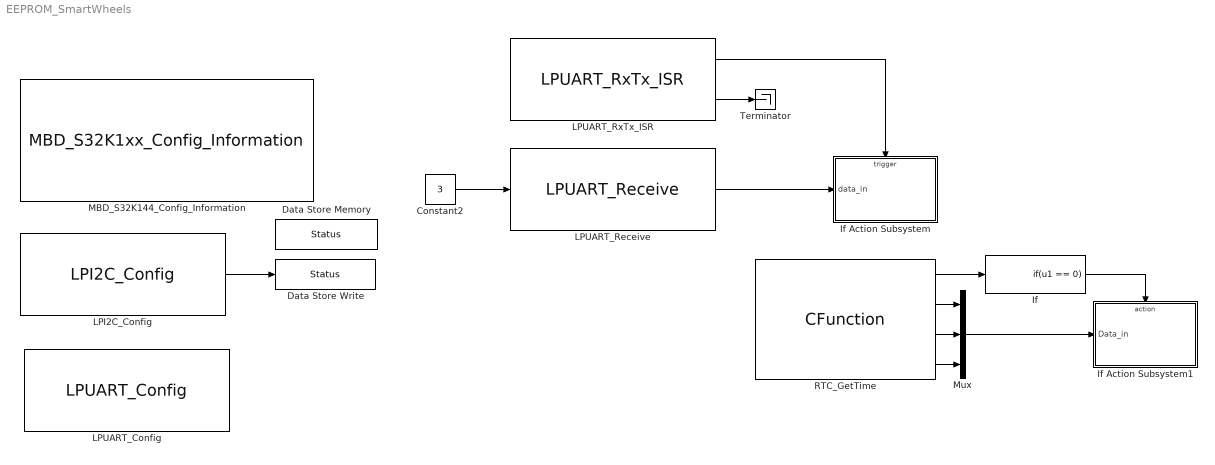
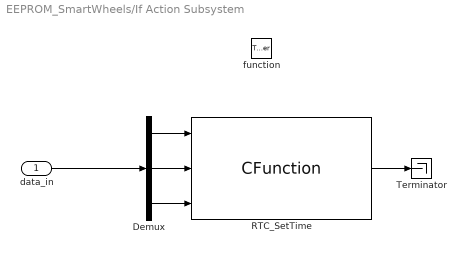
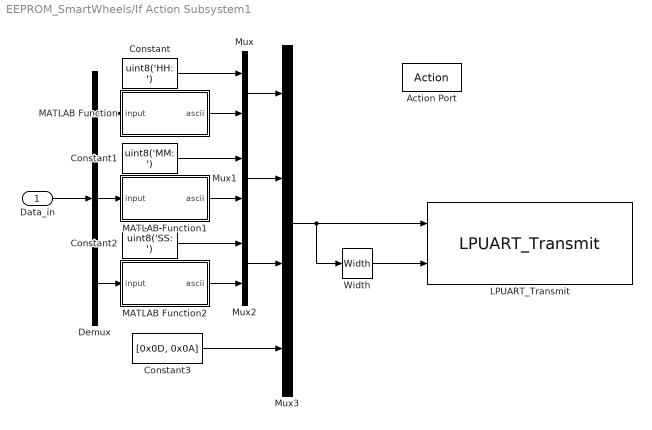
== matlab function EEPROM_SmartWheels/If Action
Subsystem1/MATLAB Function ==
function ascii = decimalToASCII(input)
%#codegen
% Input : uint8
% Output: 1x3 uint8 ASCII array

ascii = uint8(zeros(1,3));

if input >= 100
    ascii(1) = uint8(floor(double(input) / 100) + 48);
    ascii(2) = uint8(mod(floor(double(input) / 10), 10) + 48);
    ascii(3) = uint8(mod(double(input), 10) + 48);

elseif input >= 10
    ascii(1) = uint8(floor(double(input) / 10) + 48);
    ascii(2) = uint8(mod(double(input), 10) + 48);

else
    ascii(1) = uint8(input + 48);
end

== matlab function EEPROM_SmartWheels/If Action
Subsystem1/MATLAB Function2 ==
function ascii = decimalToASCII(input)
%#codegen
% Input : uint8
% Output: 1x3 uint8 ASCII array

ascii = uint8(zeros(1,3));

if input >= 100
    ascii(1) = uint8(floor(double(input) / 100) + 48);
    ascii(2) = uint8(mod(floor(double(input) / 10), 10) + 48);
    ascii(3) = uint8(mod(double(input), 10) + 48);

elseif input >= 10
    ascii(1) = uint8(floor(double(input) / 10) + 48);
    ascii(2) = uint8(mod(double(input), 10) + 48);

else
    ascii(1) = uint8(input + 48);
end

== matlab function EEPROM_SmartWheels/If Action
Subsystem1/MATLAB Function1 ==
function ascii = decimalToASCII(input)
%#codegen
% Input : uint8
% Output: 1x3 uint8 ASCII array

ascii = uint8(zeros(1,3));

if input >= 100
    ascii(1) = uint8(floor(double(input) / 100) + 48);
    ascii(2) = uint8(mod(floor(double(input) / 10), 10) + 48);
    ascii(3) = uint8(mod(double(input), 10) + 48);

elseif input >= 10
    ascii(1) = uint8(floor(double(input) / 10) + 48);
    ascii(2) = uint8(mod(double(input), 10) + 48);

else
    ascii(1) = uint8(input + 48);
end

/*
 * File: EEPROM_SmartWheels.c
 *
 * Code generated for Simulink model 'EEPROM_SmartWheels'.
 *
 * Model version                   : 1.93
 * Simulink Coder version          : 24.2 (R2024b) 21-Jun-2024
 * MBDT for S32K1xx Series Version : 4.3.0 (R2016a-R2022a) 13-Sep-2022
 * C/C++ source code generated on  : Sat Sep 26 17:03:29 2026
 *
 * Target selection: mbd_s32k.tlc
 * Embedded hardware selection: ARM Compatible->ARM Cortex
 * Code generation objectives: Unspecified
 * Validation result: Not run
 */

#include "EEPROM_SmartWheels.h"
#include "rtwtypes.h"
#include "EEPROM_SmartWheels_private.h"
#include <math.h>
#include "rt_nonfinite.h"

lpi2c_master_state_t lpi2cMasterState0;
void lpi2c_MasterCallback(i2c_master_event_t masterEvent, void *userData)
  __attribute__((weak));

/* Block signals (default storage) */
B_EEPROM_SmartWheels_T EEPROM_SmartWheels_B;

/* Real-time model */
static RT_MODEL_EEPROM_SmartWheels_T EEPROM_SmartWheels_M_;
RT_MODEL_EEPROM_SmartWheels_T *const EEPROM_SmartWheels_M =
  &EEPROM_SmartWheels_M_;

/* Forward declaration for local functions */
static real_T EEPROM_SmartWheels_mod(real_T x);
void LPI2C_DRV_SetSlaveAddr(uint16_t addr, bool is10BitAddr)
{
  LPI2C_Type *baseAddr = LPI2C0;
  LPI2C_Set_SlaveAddr0(baseAddr, addr);
  if (is10BitAddr) {
    LPI2C_Set_SlaveAddrConfig(baseAddr, LPI2C_SLAVE_ADDR_MATCH_0_10BIT);
  } else {
    LPI2C_Set_SlaveAddrConfig(baseAddr, LPI2C_SLAVE_ADDR_MATCH_0_7BIT);
  }
}

void LPUART1_RxTx_callback(void *driverState, uart_event_t event, void *userData)
{
  if (event == UART_EVENT_RX_FULL) {
    /* Output and update for function-call system: '<Root>/If Action Subsystem' */

    /* CFunction: '<S1>/RTC_SetTime' */
    /* Write Time to DS3231 */
    EEPROM_SmartWheels_B.RTC_SetTime = DS3231_SetTimeScalars
      (EEPROM_SmartWheels_B.LPUART_Receive[0],
       EEPROM_SmartWheels_B.LPUART_Receive[1],
       EEPROM_SmartWheels_B.LPUART_Receive[2]);
  }

  EEPROM_SmartWheels_B.LPUART_RxTx_ISR_o2 = ((LPUART1)->STAT);
}

/* Function for MATLAB Function: '<S2>/MATLAB Function' */
static real_T EEPROM_SmartWheels_mod(real_T x)
{
  real_T r;
  if (rtIsNaN(x)) {
    r = (rtNaN);
  } else if (rtIsInf(x)) {
    r = (rtNaN);
  } else if (x == 0.0) {
    r = 0.0;
  } else {
    r = fmod(x, 10.0);
    if (r == 0.0) {
      r = 0.0;
    } else if (r < 0.0) {
      r += 10.0;
    }
  }

  return r;
}

real_T rt_roundd_snf(real_T u)
{
  real_T y;
  if (fabs(u) < 4.503599627370496E+15) {
    if (u >= 0.5) {
      y = floor(u + 0.5);
    } else if (u > -0.5) {
      y = u * 0.0;
    } else {
      y = ceil(u - 0.5);
    }
  } else {
    y = u;
  }

  return y;
}

/*
 * Output and update for atomic system:
 *    '<S2>/MATLAB Function'
 *    '<S2>/MATLAB Function1'
 *    '<S2>/MATLAB Function2'
 */
void EEPROM_SmartWhee_MATLABFunction(uint8_T rtu_input, uint8_T rty_ascii[3])
{
  real_T tmp;
  rty_ascii[0] = 0U;
  rty_ascii[1] = 0U;
  rty_ascii[2] = 0U;
  if (rtu_input >= 100) {
    rty_ascii[0] = (uint8_T)((int32_T)floor((real_T)rtu_input / 100.0) + 48);
    tmp = rt_roundd_snf(EEPROM_SmartWheels_mod(floor((real_T)rtu_input / 10.0))
                        + 48.0);
    if (tmp < 256.0) {
      if (tmp >= 0.0) {
        rty_ascii[1] = (uint8_T)tmp;
      } else {
        rty_ascii[1] = 0U;
      }
    } else {
      rty_ascii[1] = MAX_uint8_T;
    }

    tmp = rt_roundd_snf(EEPROM_SmartWheels_mod((real_T)rtu_input) + 48.0);
    if (tmp < 256.0) {
      if (tmp >= 0.0) {
        rty_ascii[2] = (uint8_T)tmp;
      } else {
        rty_ascii[2] = 0U;
      }
    } else {
      rty_ascii[2] = MAX_uint8_T;
    }
  } else if (rtu_input >= 10) {
    rty_ascii[0] = (uint8_T)((int32_T)floor((real_T)rtu_input / 10.0) + 48);
    tmp = rt_roundd_snf(EEPROM_SmartWheels_mod((real_T)rtu_input) + 48.0);
    if (tmp < 256.0) {
      if (tmp >= 0.0) {
        rty_ascii[1] = (uint8_T)tmp;
      } else {
        rty_ascii[1] = 0U;
      }
    } else {
      rty_ascii[1] = MAX_uint8_T;
    }
  } else {
    rty_ascii[0] = (uint8_T)(rtu_input + 48);
  }
}

/* Model step function */
void EEPROM_SmartWheels_step(void)
{
  uint8_T rtb_ascii[3];
  uint8_T rtb_ascii_b[3];
  uint8_T rtb_ascii_l[3];

  /* S-Function (lpuart_s32k_receive): '<Root>/LPUART_Receive' incorporates:
   *  Constant: '<Root>/Constant2'
   */
  {
    LPUART_DRV_ReceiveData(1, &EEPROM_SmartWheels_B.LPUART_Receive[0], 3U);
  }

  /* End of Outputs for S-Function (lpuart_s32k_rxtx_isr): '<Root>/LPUART_RxTx_ISR' */

  /* CFunction: '<Root>/RTC_GetTime' */
  /* Read Time: Hours (0-23), Minutes (0-59), Seconds (0-59) */
  EEPROM_SmartWheels_B.RTC_GetTime_o1 = DS3231_GetTimeScalars
    (&EEPROM_SmartWheels_B.RTC_GetTime_o2, &EEPROM_SmartWheels_B.RTC_GetTime_o3,
     &EEPROM_SmartWheels_B.RTC_GetTime_o4);

  /* If: '<Root>/If' */
  if (EEPROM_SmartWheels_B.RTC_GetTime_o1 == 0) {
    /* Outputs for IfAction SubSystem: '<Root>/If Action Subsystem1' incorporates:
     *  ActionPort: '<S2>/Action Port'
     */
    /* MATLAB Function: '<S2>/MATLAB Function' */
    EEPROM_SmartWhee_MATLABFunction(EEPROM_SmartWheels_B.RTC_GetTime_o2,
      rtb_ascii_l);

    /* MATLAB Function: '<S2>/MATLAB Function1' */
    EEPROM_SmartWhee_MATLABFunction(EEPROM_SmartWheels_B.RTC_GetTime_o3,
      rtb_ascii_b);

    /* MATLAB Function: '<S2>/MATLAB Function2' */
    EEPROM_SmartWhee_MATLABFunction(EEPROM_SmartWheels_B.RTC_GetTime_o4,
      rtb_ascii);

    /* SignalConversion generated from: '<S2>/LPUART_Transmit' incorporates:
     *  Constant: '<S2>/Constant'
     *  Constant: '<S2>/Constant1'
     *  Constant: '<S2>/Constant2'
     *  Constant: '<S2>/Constant3'
     */
    EEPROM_SmartWheels_B.TmpSignalConversionAtLPUART_Tra[0] = 72U;
    EEPROM_SmartWheels_B.TmpSignalConversionAtLPUART_Tra[1] = 72U;
    EEPROM_SmartWheels_B.TmpSignalConversionAtLPUART_Tra[2] = 58U;
    EEPROM_SmartWheels_B.TmpSignalConversionAtLPUART_Tra[3] = 32U;
    EEPROM_SmartWheels_B.TmpSignalConversionAtLPUART_Tra[4] = rtb_ascii_l[0];
    EEPROM_SmartWheels_B.TmpSignalConversionAtLPUART_Tra[5] = rtb_ascii_l[1];
    EEPROM_SmartWheels_B.TmpSignalConversionAtLPUART_Tra[6] = rtb_ascii_l[2];
    EEPROM_SmartWheels_B.TmpSignalConversionAtLPUART_Tra[7] = 77U;
    EEPROM_SmartWheels_B.TmpSignalConversionAtLPUART_Tra[8] = 77U;
    EEPROM_SmartWheels_B.TmpSignalConversionAtLPUART_Tra[9] = 58U;
    EEPROM_SmartWheels_B.TmpSignalConversionAtLPUART_Tra[10] = 32U;
    EEPROM_SmartWheels_B.TmpSignalConversionAtLPUART_Tra[11] = rtb_ascii_b[0];
    EEPROM_SmartWheels_B.TmpSignalConversionAtLPUART_Tra[12] = rtb_ascii_b[1];
    EEPROM_SmartWheels_B.TmpSignalConversionAtLPUART_Tra[13] = rtb_ascii_b[2];
    EEPROM_SmartWheels_B.TmpSignalConversionAtLPUART_Tra[14] = 83U;
    EEPROM_SmartWheels_B.TmpSignalConversionAtLPUART_Tra[15] = 83U;
    EEPROM_SmartWheels_B.TmpSignalConversionAtLPUART_Tra[16] = 58U;
    EEPROM_SmartWheels_B.TmpSignalConversionAtLPUART_Tra[17] = 32U;
    EEPROM_SmartWheels_B.TmpSignalConversionAtLPUART_Tra[18] = rtb_ascii[0];
    EEPROM_SmartWheels_B.TmpSignalConversionAtLPUART_Tra[19] = rtb_ascii[1];
    EEPROM_SmartWheels_B.TmpSignalConversionAtLPUART_Tra[20] = rtb_ascii[2];
    EEPROM_SmartWheels_B.TmpSignalConversionAtLPUART_Tra[21] = 13U;
    EEPROM_SmartWheels_B.TmpSignalConversionAtLPUART_Tra[22] = 10U;

    /* S-Function (lpuart_s32k_transmit): '<S2>/LPUART_Transmit' */
    {
      LPUART_DRV_SendData(1,
                          &EEPROM_SmartWheels_B.TmpSignalConversionAtLPUART_Tra
                          [0], EEPROM_SmartWheels_ConstB.Width);
    }

    /* End of Outputs for SubSystem: '<Root>/If Action Subsystem1' */
  }

  /* End of If: '<Root>/If' */
}
